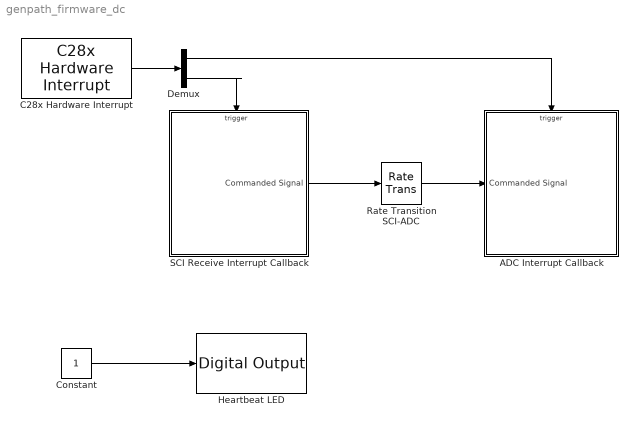
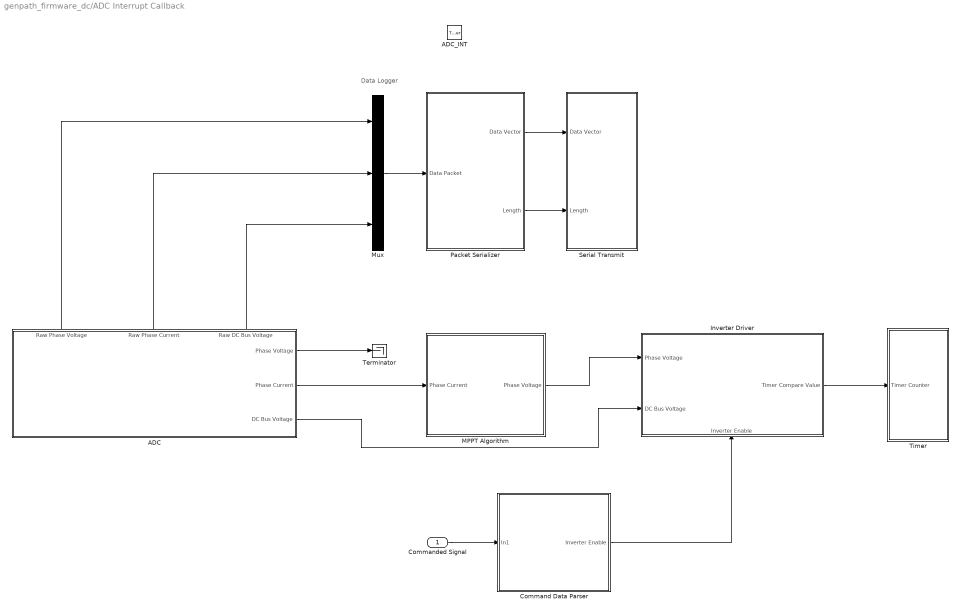
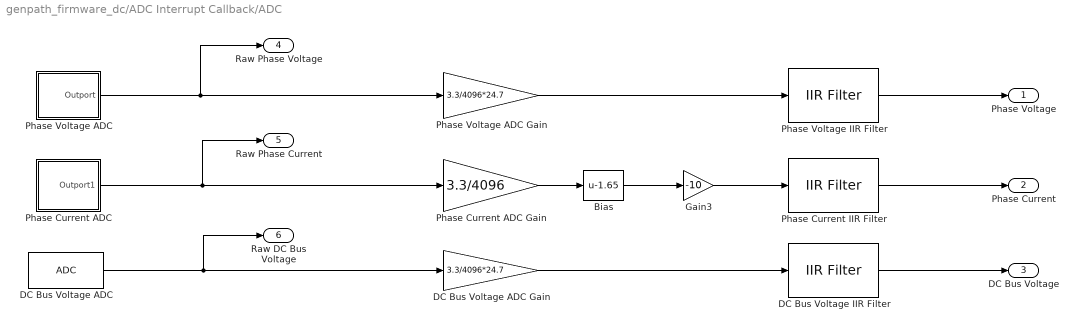
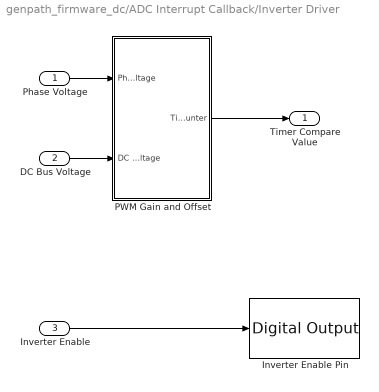
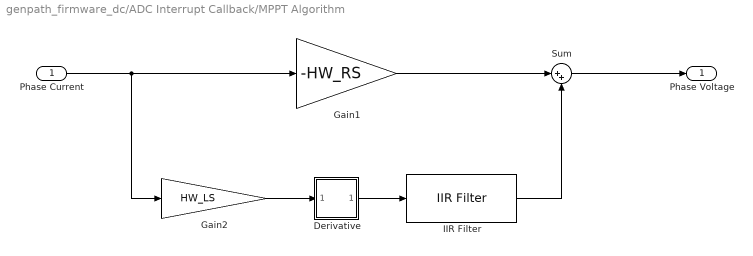
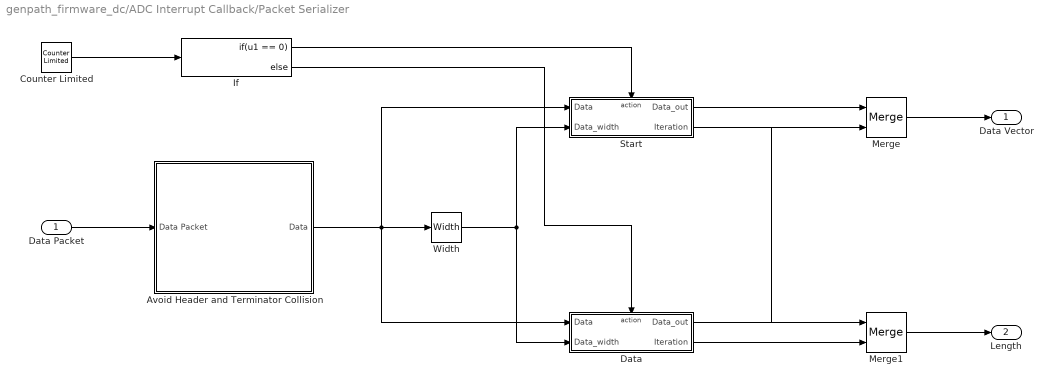
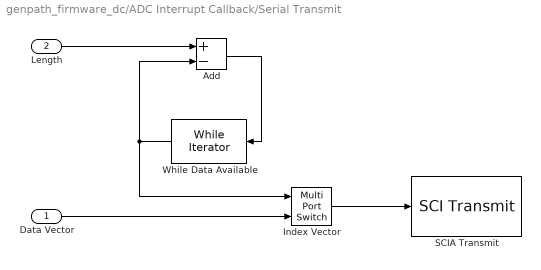
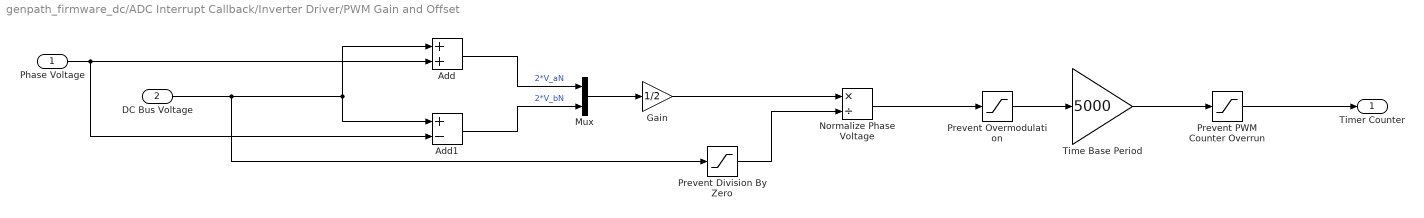
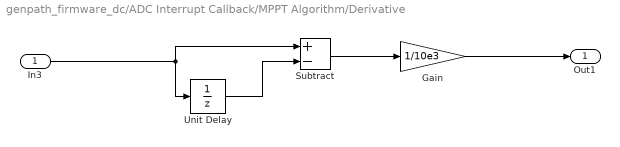
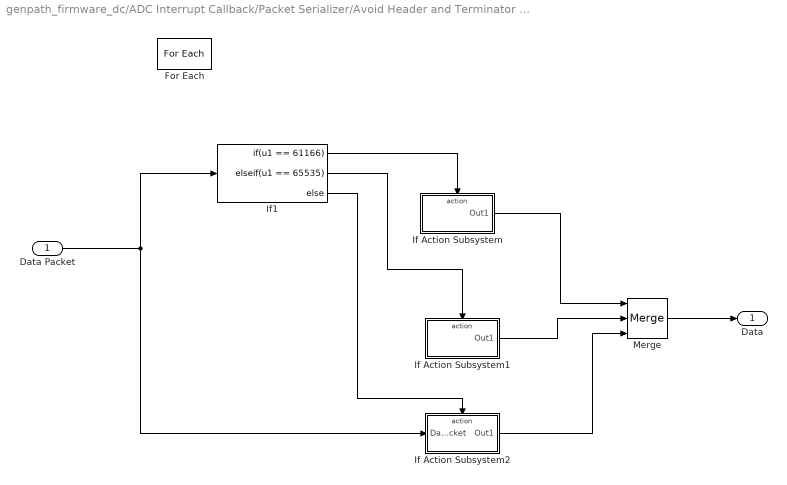
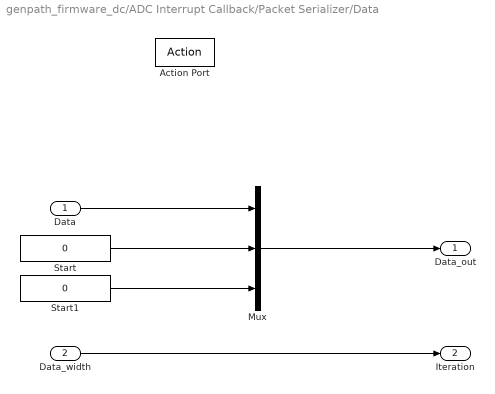
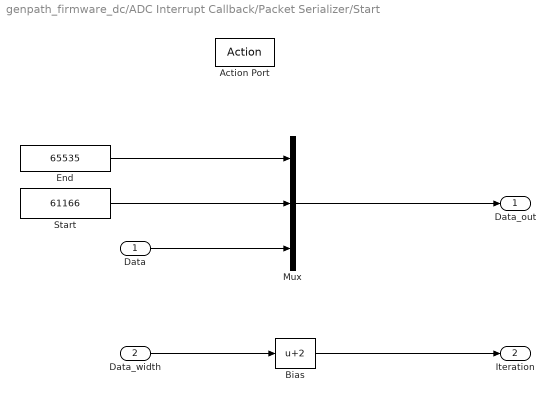
== system genpath_firmware_dc/SCI Receive Interrupt Callback ==
  SCI_RX_INT : TriggerPort  TriggerType=function-call  VariantControl=(inherit)
  SCIA Receive : c280xlib/SCI Receive  sciModule=A  dataHead='S'  headerCheckMaxCount=16  dataTail='E'  dataType=uint8  dataLenOptions=Length via dialog  dataDim=1  maxDataLength=1  initValue=0  errOption=Output the last received value  errValue=0  sampleTime=-1  blockingMode=on  timeOut=0.0175  outputStatus=off
  Commanded Signal : Outport
  wires:
  SCIA Receive/1 -> Commanded Signal/1

== system genpath_firmware_dc/ADC Interrupt Callback/Command Data Parser ==
  In1 : Inport
  Data Type Conversion : DataTypeConversion  SaturateOnIntegerOverflow=off  RndMeth=Floor
  Inverter Enable : Outport
  wires:
  Data Type Conversion/1 -> Inverter Enable/1
  In1/1 -> Data Type Conversion/1

== system genpath_firmware_dc/ADC Interrupt Callback/Timer ==
  Timer Counter : Inport
  Demux : Demux  Outputs=2
  SW_A : c2802xlib/ePWM  PwmType=C2000_Type4  useModule=ePWM1  ePWMxLINKTBPRD=Not Linked  periodUnits=Clock cycles  timerSource=Specify via dialog  timerPeriod_clk=5000  timerPeriod_sec=0.0001  tbshadow=Counter equals to zero  countingMode=Up-Down  phaseActiveEnable=Disable  phaseDirection=Count down after sync  phaseActive=0  synchronizationEnable=off  dcaevt1Sync=off  dcbevt1Sync=off  synchronizationOption=Disable  perSynchronizationOption=Counter equals to period (CTR=PRD)  clockPrescale=1  HSclockPrescale=1  enswap=off  ePWMxAStatus=on  ePWMxAactionLogic1=Set  ePWMxAactionLogic2=Clear  ePWMxAactionLogic3=Clear  ePWMxAactionLogic4=Set  ePWMxAactionLogic5=Do nothing  ePWMxAactionLogic6=Do nothing  ePWMxACSFenable=off  ePWMxACSFvalue=Forcing disable  ePWMxASFreload=Zero  ePWMxBStatus=off  ePWMxBactionLogic1=Set  ePWMxBactionLogic2=Clear  ePWMxBactionLogic3=Do nothing  ePWMxBactionLogic4=Do nothing  ePWMxBactionLogic5=Clear  ePWMxBactionLogic6=Set  ePWMxBCSFenable=off  ePWMxBCSFvalue=Forcing disable  ePWMxBSFreload=Zero  ePWNxBOutWay=off  ePWMxLINKCMPA=Not Linked  CMPAUnits=Clock cycles  CMPASource=Input port  CMPAValue_per=50  CMPAValue_clk=0  enCMPAshadow=Counter equals to zero (CTR=Zero)  ePWMxLINKCMPB=Not Linked  CMPBUnits=Clock cycles  CMPBSource=Specify via dialog  CMPBValue_per=50  CMPBValue_clk=32000  enCMPBshadow=Counter equals to zero (CTR=Zero)  ePWMxLINKCMPC=Not Linked  CMPCUnits=Clock cycles  CMPCSource=Specify via dialog  CMPCValue_per=50  CMPCValue_clk=32000  enCMPCshadow=Counter equals to zero (CTR=Zero)  ePWMxLINKCMPD=Not Linked  CMPDUnits=Clock cycles  CMPDSource=Specify via dialog  CMPDValue_per=50  CMPDValue_clk=32000  enCMPDshadow=Counter equals to zero (CTR=Zero)  enableDBePWMxA=on  enableDBePWMxB=on  enhalfcycle=off  DBpolarity=Active high complementary (AHC)  DBedgeDelay=Positive  DBSource_ePWMxA=ePWMxA  DBSource_ePWMxB=ePWMxA  DBPeriodUnits=Clock cycles  DBperiodSource=Specify via dialog  REDperiod=5  FEDperiod=5  REDperiod_sec=0  FEDperiod_sec=0  LoadModeDBRED=Immediate without using shadow  LoadModeDBFED=Immediate without using shadow  adcstartModuleA=on  adcrequestEventA=First event  adcstartEventA=Digital Compare Module A Event 1 start of conversion (DCAEVT1.soc)  adcstartEventA_type2=Counter equals to period (CTR=PRD)  adcstartModuleB=off  adcrequestEventB=First event  adcstartEventB=Counter equals to zero (CTR=Zero)  adcstartEventB_type2=Counter equals to zero (CTR=Zero)  intEn=off  intPrd=First event  intSel=Counter equals to zero (CTR=Zero)  intSel_type2=Counter equals to zero (CTR=Zero)  hrpe=off  enHRPWM=off  HRPWM_LoadMode=Counter equals to period (CTR=PRD)  HRPWM_CTLMode=Duty or Period control mode  HRPWM_EDGMode=Both edge  hrpeb=off  enHRPWMB=off  HRPWM_LoadModeB=Counter equals to zero (CTR=ZERO)  HRPWM_CTLModeB=Duty or Period control mode  HRPWM_EDGModeB=Both edge  enHRDBRED=off  enHRDBFED=off  enSFO=on  enautoconv=on  chopperEnable=off  chopperFrequency=1  chopperFirstwidth=1  chopperDuty=12.5%  tripZonesource=Specify via dialog  tzselOSHT1=off  tzselOSHT2=off  tzselOSHT3=off  tzselOSHDCAEV1=off  tzselOSHDCBEV1=off  tzselCBC1=off  tzselCBC2=off  tzselCBC3=off  tzselCBCDCAEV2=off  tzselCBCDCBEV2=off  tzselOSHT4=off  tzselOSHT5=off  tzselOSHT6=off  tzselCBC4=off  tzselCBC5=off  tzselCBC6=off  enTzOstIntr=off  enTzCbcIntr=off  enTzDCAEVT1Intr=off  enTzDCAEVT2Intr=off  enTzDCBEVT1Intr=off  enTzDCBEVT2Intr=off  ePWMxAforced=No action  ePWMxBforced=No action  DCAEVT1forced=No action  DCBEVT1forced=No action  DCAEVT2forced=No action  DCBEVT2forced=No action  dcah=Trip Zone 1 input (TZ1)  dcal=Trip Zone 2 input (TZ2)  dcbh=Trip Zone 1 input (TZ1)  dcbl=Trip Zone 2 input (TZ2)  dcah_type2=GPTRIP1SEL/(TZ1)  dcal_type2=GPTRIP1SEL/(TZ1)  dcbh_type2=GPTRIP1SEL/(TZ1)  dcbl_type2=GPTRIP1SEL/(TZ1)  gendcaevt1=Event disabled  gendcaevt2=Event disabled  gendcbevt1=Event disabled  gendcbevt2=Event disabled  dcaevt1src=DCAEVT1 with sync  dcaevt2src=DCAEVT2 with sync  dcbevt1src=DCBEVT1 with sync  dcbevt2src=DCBEVT2 with sync  pulsesel=Counter equals to zero (CTR=Zero)  blankinv=off  blankoffset=0  blankwidth=0  evsrcsel=Filtered version of DCAEVT1 (DCAEVT1FILT)  encape=off
  SW_B : c2802xlib/ePWM  PwmType=C2000_Type4  useModule=ePWM4  ePWMxLINKTBPRD=ePWM1  periodUnits=Clock cycles  timerSource=Specify via dialog  timerPeriod_clk=5000  timerPeriod_sec=0.0001  tbshadow=Counter equals to zero  countingMode=Up-Down  phaseActiveEnable=Disable  phaseDirection=Count down after sync  phaseActive=0  synchronizationEnable=off  dcaevt1Sync=off  dcbevt1Sync=off  synchronizationOption=Disable  perSynchronizationOption=Counter equals to period (CTR=PRD)  clockPrescale=1  HSclockPrescale=1  enswap=off  ePWMxAStatus=on  ePWMxAactionLogic1=Set  ePWMxAactionLogic2=Clear  ePWMxAactionLogic3=Clear  ePWMxAactionLogic4=Set  ePWMxAactionLogic5=Do nothing  ePWMxAactionLogic6=Do nothing  ePWMxACSFenable=off  ePWMxACSFvalue=Forcing disable  ePWMxASFreload=Zero  ePWMxBStatus=off  ePWMxBactionLogic1=Set  ePWMxBactionLogic2=Clear  ePWMxBactionLogic3=Do nothing  ePWMxBactionLogic4=Do nothing  ePWMxBactionLogic5=Clear  ePWMxBactionLogic6=Set  ePWMxBCSFenable=off  ePWMxBCSFvalue=Forcing disable  ePWMxBSFreload=Zero  ePWNxBOutWay=off  ePWMxLINKCMPA=Not Linked  CMPAUnits=Clock cycles  CMPASource=Input port  CMPAValue_per=50  CMPAValue_clk=0  enCMPAshadow=Counter equals to zero (CTR=Zero)  ePWMxLINKCMPB=Not Linked  CMPBUnits=Clock cycles  CMPBSource=Specify via dialog  CMPBValue_per=50  CMPBValue_clk=32000  enCMPBshadow=Counter equals to zero (CTR=Zero)  ePWMxLINKCMPC=Not Linked  CMPCUnits=Clock cycles  CMPCSource=Specify via dialog  CMPCValue_per=50  CMPCValue_clk=32000  enCMPCshadow=Counter equals to zero (CTR=Zero)  ePWMxLINKCMPD=Not Linked  CMPDUnits=Clock cycles  CMPDSource=Specify via dialog  CMPDValue_per=50  CMPDValue_clk=32000  enCMPDshadow=Counter equals to zero (CTR=Zero)  enableDBePWMxA=on  enableDBePWMxB=on  enhalfcycle=off  DBpolarity=Active high complementary (AHC)  DBedgeDelay=Positive  DBSource_ePWMxA=ePWMxA  DBSource_ePWMxB=ePWMxA  DBPeriodUnits=Clock cycles  DBperiodSource=Specify via dialog  REDperiod=5  FEDperiod=5  REDperiod_sec=0  FEDperiod_sec=0  LoadModeDBRED=Immediate without using shadow  LoadModeDBFED=Immediate without using shadow  adcstartModuleA=on  adcrequestEventA=First event  adcstartEventA=Digital Compare Module A Event 1 start of conversion (DCAEVT1.soc)  adcstartEventA_type2=Counter equals to period (CTR=PRD)  adcstartModuleB=off  adcrequestEventB=First event  adcstartEventB=Counter equals to zero (CTR=Zero)  adcstartEventB_type2=Counter equals to zero (CTR=Zero)  intEn=off  intPrd=First event  intSel=Counter equals to zero (CTR=Zero)  intSel_type2=Counter equals to zero (CTR=Zero)  hrpe=off  enHRPWM=off  HRPWM_LoadMode=Counter equals to period (CTR=PRD)  HRPWM_CTLMode=Duty or Period control mode  HRPWM_EDGMode=Both edge  hrpeb=off  enHRPWMB=off  HRPWM_LoadModeB=Counter equals to zero (CTR=ZERO)  HRPWM_CTLModeB=Duty or Period control mode  HRPWM_EDGModeB=Both edge  enHRDBRED=off  enHRDBFED=off  enSFO=on  enautoconv=on  chopperEnable=off  chopperFrequency=1  chopperFirstwidth=1  chopperDuty=12.5%  tripZonesource=Specify via dialog  tzselOSHT1=off  tzselOSHT2=off  tzselOSHT3=off  tzselOSHDCAEV1=off  tzselOSHDCBEV1=off  tzselCBC1=off  tzselCBC2=off  tzselCBC3=off  tzselCBCDCAEV2=off  tzselCBCDCBEV2=off  tzselOSHT4=off  tzselOSHT5=off  tzselOSHT6=off  tzselCBC4=off  tzselCBC5=off  tzselCBC6=off  enTzOstIntr=off  enTzCbcIntr=off  enTzDCAEVT1Intr=off  enTzDCAEVT2Intr=off  enTzDCBEVT1Intr=off  enTzDCBEVT2Intr=off  ePWMxAforced=No action  ePWMxBforced=No action  DCAEVT1forced=No action  DCBEVT1forced=No action  DCAEVT2forced=No action  DCBEVT2forced=No action  dcah=Trip Zone 1 input (TZ1)  dcal=Trip Zone 2 input (TZ2)  dcbh=Trip Zone 1 input (TZ1)  dcbl=Trip Zone 2 input (TZ2)  dcah_type2=GPTRIP1SEL/(TZ1)  dcal_type2=GPTRIP1SEL/(TZ1)  dcbh_type2=GPTRIP1SEL/(TZ1)  dcbl_type2=GPTRIP1SEL/(TZ1)  gendcaevt1=Event disabled  gendcaevt2=Event disabled  gendcbevt1=Event disabled  gendcbevt2=Event disabled  dcaevt1src=DCAEVT1 with sync  dcaevt2src=DCAEVT2 with sync  dcbevt1src=DCBEVT1 with sync  dcbevt2src=DCBEVT2 with sync  pulsesel=Counter equals to zero (CTR=Zero)  blankinv=off  blankoffset=0  blankwidth=0  evsrcsel=Filtered version of DCAEVT1 (DCAEVT1FILT)  encape=off
  wires:
  Timer Counter/1 -> Demux/1
  Demux/1 -> SW_A/1
  Demux/2 -> SW_B/1

== system genpath_firmware_dc/ADC Interrupt Callback/ADC/Phase Current ADC ==
  Bias : Bias  Bias=+5
  I_A : c2802xlib/ADC  blkParamProc=C2000_Type5  ADCModule=C  samplingMode=Single sample mode  ADCResolution=12-bit (Single-ended input)  useSOC1=SOC3  useSOC2=SOC0_SOC1  SOCAcquisitionWindow=8  SOCTriggerSource=ePWM1_ADCSOCA  SOCInterruptTrigger=No ADCINT  Ts=-1  dType=uint16  postInterrupt=off  interruptSel=ADCINT1  ADCINTContinuous=on  endma=off  chdma=1  conv1=ADCINA0  conv2=ADCINA0 and ADCINB0  conv1_Type4=ADCIN3  conv2_Type4=ADCIN0 and ADCIN1
  Outport1 : Outport
  wires:
  I_A/1 -> Bias/1
  Bias/1 -> Outport1/1

== system genpath_firmware_dc/ADC Interrupt Callback/ADC/Phase Voltage ADC ==
  Mux1 : Mux  Inputs=2
  V_A : c2802xlib/ADC  blkParamProc=C2000_Type5  ADCModule=B  samplingMode=Single sample mode  ADCResolution=12-bit (Single-ended input)  useSOC1=SOC0  useSOC2=SOC0_SOC1  SOCAcquisitionWindow=8  SOCTriggerSource=ePWM1_ADCSOCA  SOCInterruptTrigger=No ADCINT  Ts=-1  dType=uint16  postInterrupt=off  interruptSel=ADCINT1  ADCINTContinuous=on  endma=off  chdma=1  conv1=ADCINA0  conv2=ADCINA0 and ADCINB0  conv1_Type4=ADCIN6  conv2_Type4=ADCIN0 and ADCIN1
  V_B : c2802xlib/ADC  blkParamProc=C2000_Type5  ADCModule=C  samplingMode=Single sample mode  ADCResolution=12-bit (Single-ended input)  useSOC1=SOC1  useSOC2=SOC0_SOC1  SOCAcquisitionWindow=8  SOCTriggerSource=ePWM1_ADCSOCA  SOCInterruptTrigger=No ADCINT  Ts=-1  dType=uint16  postInterrupt=off  interruptSel=ADCINT1  ADCINTContinuous=on  endma=off  chdma=1  conv1=ADCINA0  conv2=ADCINA0 and ADCINB0  conv1_Type4=ADCIN14  conv2_Type4=ADCIN0 and ADCIN1
  Outport : Outport
  wires:
  Mux1/1 -> Outport/1
  V_B/1 -> Mux1/2
  V_A/1 -> Mux1/1

== system genpath_firmware_dc/ADC Interrupt Callback/Packet Serializer/Avoid Header and Terminator Collision/If Action Subsystem ==
  Action Port : ActionPort  ActionPortLabel=if(u1 == 61166)
  Constant : Constant  Value=258  OutDataTypeStr=Inherit: Inherit via back propagation
  Out1 : Outport
  wires:
  Constant/1 -> Out1/1

== system genpath_firmware_dc/ADC Interrupt Callback/Packet Serializer/Avoid Header and Terminator Collision/If Action Subsystem1 ==
  Action Port : ActionPort  ActionPortLabel=elseif( u1 == 65535)
  Constant : Constant  Value=515  OutDataTypeStr=Inherit: Inherit via back propagation
  Out1 : Outport
  wires:
  Constant/1 -> Out1/1

== system genpath_firmware_dc/ADC Interrupt Callback/Packet Serializer/Avoid Header and Terminator Collision/If Action Subsystem2 ==
  Data Packet : Inport
  Action Port : ActionPort  ActionPortLabel=else
  Out1 : Outport
  wires:
  Data Packet/1 -> Out1/1

/*
 * Academic License - for use in teaching, academic research, and meeting
 * course requirements at degree granting institutions only.  Not for
 * government, commercial, or other organizational use.
 *
 * File: genpath_firmware_dc.c
 *
 * Code generated for Simulink model 'genpath_firmware_dc'.
 *
 * Model version                  : 3.4
 * Simulink Coder version         : 9.7 (R2022a) 13-Nov-2021
 * C/C++ source code generated on : Thu Apr 21 10:46:13 2022
 *
 * Target selection: ert.tlc
 * Embedded hardware selection: Texas Instruments->C2000
 * Code generation objectives:
 *    1. Execution efficiency
 *    2. ROM efficiency
 *    3. RAM efficiency
 * Validation result: Not run
 */

#include "genpath_firmware_dc.h"
#include "rtwtypes.h"
#include "genpath_firmware_dc_private.h"
#include <math.h>
#include "rt_nonfinite.h"

/* Block signals (default storage) */
B_genpath_firmware_dc_T genpath_firmware_dc_B;

/* Block states (default storage) */
DW_genpath_firmware_dc_T genpath_firmware_dc_DW;

/* Real-time model */
static RT_MODEL_genpath_firmware_dc_T genpath_firmware_dc_M_;
RT_MODEL_genpath_firmware_dc_T *const genpath_firmware_dc_M =
  &genpath_firmware_dc_M_;
static void rate_monotonic_scheduler(void);

#ifndef __TMS320C28XX_CLA__

uint16_T MW_adcBInitFlag = 0;

#endif

#ifndef __TMS320C28XX_CLA__

uint16_T MW_adcCInitFlag = 0;

#endif

#ifndef __TMS320C28XX_CLA__

uint16_T MW_adcAInitFlag = 0;

#endif

/* Hardware Interrupt Block: '<Root>/C28x Hardware Interrupt' */
void isr_int1pie1_task_fcn(void)
{
  if (1 == runModel) {
    /* Call the system: <Root>/ADC Interrupt Callback */
    {
      /* RateTransition: '<Root>/Rate Transition SCI-ADC' */
      genpath_firmware_dc_B.RateTransitionSCIADC =
        genpath_firmware_dc_DW.RateTransitionSCIADC_Buffer0;

      /* S-Function (c28xisr_c2000): '<Root>/C28x Hardware Interrupt' */

      /* Output and update for function-call system: '<Root>/ADC Interrupt Callback' */
      {
        real32_T rtb_Gain2;
        real32_T rtb_PreventDivisionByZero;
        real32_T rtb_uV_bN;
        real32_T u0;
        int16_T s8_iter;
        uint16_T rtb_Merge[6];
        uint16_T rtb_ImpAsg_InsertedFor_Data_at_[4];
        uint16_T rtb_TmpSignalConversionAtAvoidH[4];
        uint16_T rtb_PreventPWMCounterOverrun[2];
        uint16_T qY;
        uint16_T rtb_Merge_p;

        /* S-Function (c2802xadc): '<S13>/V_A' */
        {
          /*  Internal Reference Voltage : Fixed scale 0 to 3.3 V range.  */
          /*  External Reference Voltage : Allowable ranges of VREFHI(ADCINA0) = 3.3 and VREFLO(tied to ground) = 0  */
          genpath_firmware_dc_B.V_A = (AdcbResultRegs.ADCRESULT0);
        }

        /* S-Function (c2802xadc): '<S13>/V_B' */
        {
          /*  Internal Reference Voltage : Fixed scale 0 to 3.3 V range.  */
          /*  External Reference Voltage : Allowable ranges of VREFHI(ADCINA0) = 3.3 and VREFLO(tied to ground) = 0  */
          genpath_firmware_dc_B.V_B = (AdccResultRegs.ADCRESULT1);
        }

        /* S-Function (c2802xadc): '<S11>/I_A' */
        {
          /*  Internal Reference Voltage : Fixed scale 0 to 3.3 V range.  */
          /*  External Reference Voltage : Allowable ranges of VREFHI(ADCINA0) = 3.3 and VREFLO(tied to ground) = 0  */
          genpath_firmware_dc_B.I_A = (AdccResultRegs.ADCRESULT3);
        }

        /* Bias: '<S11>/Bias' */
        qY = genpath_firmware_dc_B.I_A + /*MW:OvSatOk*/
          genpath_firmware_dc_P.Bias_Bias_p;
        if (qY < genpath_firmware_dc_B.I_A) {
          qY = MAX_uint16_T;
        }

        /* S-Function (c2802xadc): '<S3>/DC Bus Voltage ADC' */
        {
          /*  Internal Reference Voltage : Fixed scale 0 to 3.3 V range.  */
          /*  External Reference Voltage : Allowable ranges of VREFHI(ADCINA0) = 3.3 and VREFLO(tied to ground) = 0  */
          genpath_firmware_dc_B.DCBusVoltageADC = (AdcaResultRegs.ADCRESULT6);
        }

        /* SignalConversion generated from: '<S7>/Avoid Header and Terminator Collision' incorporates:
         *  Bias: '<S11>/Bias'
         */
        rtb_TmpSignalConversionAtAvoidH[0] = genpath_firmware_dc_B.V_A;
        rtb_TmpSignalConversionAtAvoidH[1] = genpath_firmware_dc_B.V_B;
        rtb_TmpSignalConversionAtAvoidH[2] = qY;
        rtb_TmpSignalConversionAtAvoidH[3] =
          genpath_firmware_dc_B.DCBusVoltageADC;

        /* Outputs for Iterator SubSystem: '<S7>/Avoid Header and Terminator Collision' incorporates:
         *  ForEach: '<S30>/For Each'
         */
        /* ForEachSliceSelector generated from: '<S30>/Data Packet' */
        rtb_Merge_p = rtb_TmpSignalConversionAtAvoidH[0];

        /* If: '<S30>/If1' */
        if (rtb_Merge_p == 61166U) {
          /* Outputs for IfAction SubSystem: '<S30>/If Action Subsystem' incorporates:
           *  ActionPort: '<S34>/Action Port'
           */
          genpath_f_IfActionSubsystem(&rtb_Merge_p,
            &genpath_firmware_dc_P.CoreSubsys.IfActionSubsystem);

          /* End of Outputs for SubSystem: '<S30>/If Action Subsystem' */
        } else if (rtb_Merge_p == MAX_uint16_T) {
          /* Outputs for IfAction SubSystem: '<S30>/If Action Subsystem1' incorporates:
           *  ActionPort: '<S35>/Action Port'
           */
          genpath_f_IfActionSubsystem(&rtb_Merge_p,
            &genpath_firmware_dc_P.CoreSubsys.IfActionSubsystem1);

          /* End of Outputs for SubSystem: '<S30>/If Action Subsystem1' */
        }

        /* ForEachSliceAssignment generated from: '<S30>/Data' */
        rtb_ImpAsg_InsertedFor_Data_at_[0] = rtb_Merge_p;

        /* ForEachSliceSelector generated from: '<S30>/Data Packet' */
        rtb_Merge_p = rtb_TmpSignalConversionAtAvoidH[1];

        /* If: '<S30>/If1' */
        if (rtb_Merge_p == 61166U) {
          /* Outputs for IfAction SubSystem: '<S30>/If Action Subsystem' incorporates:
           *  ActionPort: '<S34>/Action Port'
           */
          genpath_f_IfActionSubsystem(&rtb_Merge_p,
            &genpath_firmware_dc_P.CoreSubsys.IfActionSubsystem);

          /* End of Outputs for SubSystem: '<S30>/If Action Subsystem' */
        } else if (rtb_Merge_p == MAX_uint16_T) {
          /* Outputs for IfAction SubSystem: '<S30>/If Action Subsystem1' incorporates:
           *  ActionPort: '<S35>/Action Port'
           */
          genpath_f_IfActionSubsystem(&rtb_Merge_p,
            &genpath_firmware_dc_P.CoreSubsys.IfActionSubsystem1);

          /* End of Outputs for SubSystem: '<S30>/If Action Subsystem1' */
        }

        /* ForEachSliceAssignment generated from: '<S30>/Data' */
        rtb_ImpAsg_InsertedFor_Data_at_[1] = rtb_Merge_p;

        /* ForEachSliceSelector generated from: '<S30>/Data Packet' */
        rtb_Merge_p = rtb_TmpSignalConversionAtAvoidH[2];

        /* If: '<S30>/If1' */
        if (rtb_Merge_p == 61166U) {
          /* Outputs for IfAction SubSystem: '<S30>/If Action Subsystem' incorporates:
           *  ActionPort: '<S34>/Action Port'
           */
          genpath_f_IfActionSubsystem(&rtb_Merge_p,
            &genpath_firmware_dc_P.CoreSubsys.IfActionSubsystem);

          /* End of Outputs for SubSystem: '<S30>/If Action Subsystem' */
        } else if (rtb_Merge_p == MAX_uint16_T) {
          /* Outputs for IfAction SubSystem: '<S30>/If Action Subsystem1' incorporates:
           *  ActionPort: '<S35>/Action Port'
           */
          genpath_f_IfActionSubsystem(&rtb_Merge_p,
            &genpath_firmware_dc_P.CoreSubsys.IfActionSubsystem1);

          /* End of Outputs for SubSystem: '<S30>/If Action Subsystem1' */
        }

        /* ForEachSliceAssignment generated from: '<S30>/Data' */
        rtb_ImpAsg_InsertedFor_Data_at_[2] = rtb_Merge_p;

        /* ForEachSliceSelector generated from: '<S30>/Data Packet' */
        rtb_Merge_p = rtb_TmpSignalConversionAtAvoidH[3];

        /* If: '<S30>/If1' */
        if (rtb_Merge_p == 61166U) {
          /* Outputs for IfAction SubSystem: '<S30>/If Action Subsystem' incorporates:
           *  ActionPort: '<S34>/Action Port'
           */
          genpath_f_IfActionSubsystem(&rtb_Merge_p,
            &genpath_firmware_dc_P.CoreSubsys.IfActionSubsystem);

          /* End of Outputs for SubSystem: '<S30>/If Action Subsystem' */
        } else if (rtb_Merge_p == MAX_uint16_T) {
          /* Outputs for IfAction SubSystem: '<S30>/If Action Subsystem1' incorporates:
           *  ActionPort: '<S35>/Action Port'
           */
          genpath_f_IfActionSubsystem(&rtb_Merge_p,
            &genpath_firmware_dc_P.CoreSubsys.IfActionSubsystem1);

          /* End of Outputs for SubSystem: '<S30>/If Action Subsystem1' */
        }

        /* ForEachSliceAssignment generated from: '<S30>/Data' */
        rtb_ImpAsg_InsertedFor_Data_at_[3] = rtb_Merge_p;

        /* End of Outputs for SubSystem: '<S7>/Avoid Header and Terminator Collision' */

        /* If: '<S7>/If' incorporates:
         *  UnitDelay: '<S31>/Output'
         */
        if (genpath_firmware_dc_DW.Output_DSTATE == 0U) {
          /* Outputs for IfAction SubSystem: '<S7>/Start' incorporates:
           *  ActionPort: '<S33>/Action Port'
           */
          /* SignalConversion generated from: '<S33>/Data_out' incorporates:
           *  Constant: '<S33>/End'
           *  Constant: '<S33>/Start'
           *  SignalConversion generated from: '<S33>/Data'
           */
          rtb_Merge[0] = genpath_firmware_dc_P.End_Value;
          rtb_Merge[1] = genpath_firmware_dc_P.Start_Value;
          rtb_Merge[2] = rtb_ImpAsg_InsertedFor_Data_at_[0];
          rtb_Merge[3] = rtb_ImpAsg_InsertedFor_Data_at_[1];
          rtb_Merge[4] = rtb_ImpAsg_InsertedFor_Data_at_[2];
          rtb_Merge[5] = rtb_ImpAsg_InsertedFor_Data_at_[3];

          /* Bias: '<S33>/Bias' */
          rtb_Merge_p = genpath_firmware_dc_ConstB.Width +
            genpath_firmware_dc_P.Bias_Bias_c;

          /* End of Outputs for SubSystem: '<S7>/Start' */
        } else {
          /* Outputs for IfAction SubSystem: '<S7>/Data' incorporates:
           *  ActionPort: '<S32>/Action Port'
           */
          /* SignalConversion generated from: '<S32>/Data_out' incorporates:
           *  Constant: '<S32>/Start'
           *  Constant: '<S32>/Start1'
           *  SignalConversion generated from: '<S32>/Data'
           */
          rtb_Merge[0] = rtb_ImpAsg_InsertedFor_Data_at_[0];
          rtb_Merge[1] = rtb_ImpAsg_InsertedFor_Data_at_[1];
          rtb_Merge[2] = rtb_ImpAsg_InsertedFor_Data_at_[2];
          rtb_Merge[3] = rtb_ImpAsg_InsertedFor_Data_at_[3];
          rtb_Merge[4] = genpath_firmware_dc_P.Start_Value_i;
          rtb_Merge[5] = genpath_firmware_dc_P.Start1_Value;

          /* SignalConversion generated from: '<S32>/Data_width' */
          rtb_Merge_p = genpath_firmware_dc_ConstB.Width;

          /* End of Outputs for SubSystem: '<S7>/Data' */
        }

        /* End of If: '<S7>/If' */

        /* Outputs for Iterator SubSystem: '<S1>/Serial Transmit' incorporates:
         *  WhileIterator: '<S8>/While Data Available'
         */
        /* MultiPortSwitch: '<S8>/Index Vector' */
        s8_iter = 0;
        uint16_T rtb_Add;
        do {
          genpath_firmware_dc_B.DataTypeConversion = rtb_Merge[s8_iter];

          {
            if (checkSCITransmitInprogress != 1) {
              checkSCITransmitInprogress = 1;
              int errFlgHeader = NOERROR;
              int errFlgData = NOERROR;
              int errFlgTail = NOERROR;
              errFlgData = scia_xmit((char*)
                &genpath_firmware_dc_B.DataTypeConversion, 2, 2);
              checkSCITransmitInprogress = 0;
            }
          }

          rtb_Add = (rtb_Merge_p - s8_iter) - 1U;
          s8_iter++;
        } while (rtb_Add != 0U);

        /* End of Outputs for SubSystem: '<S1>/Serial Transmit' */

        /* Sum: '<S17>/Add1' incorporates:
         *  Constant: '<S17>/Filter_Constant'
         *  Constant: '<S17>/One'
         *  Gain: '<S3>/DC Bus Voltage ADC Gain'
         *  Product: '<S17>/Product'
         *  Product: '<S17>/Product1'
         *  UnitDelay: '<S17>/Unit Delay'
         */
        genpath_firmware_dc_DW.UnitDelay_DSTATE = (real32_T)
          genpath_firmware_dc_P.DCBusVoltageADCGain_Gain * 4.76837158E-7F *
          (real32_T)genpath_firmware_dc_B.DCBusVoltageADC *
          genpath_firmware_dc_P.Filter_Constant_Value +
          genpath_firmware_dc_P.One_Value *
          genpath_firmware_dc_DW.UnitDelay_DSTATE;

        /* Sum: '<S20>/Add1' incorporates:
         *  Bias: '<S11>/Bias'
         *  Bias: '<S3>/Bias'
         *  Constant: '<S20>/Filter_Constant'
         *  Constant: '<S20>/One'
         *  Gain: '<S3>/Gain3'
         *  Gain: '<S3>/Phase Current ADC Gain'
         *  Product: '<S20>/Product'
         *  Product: '<S20>/Product1'
         *  UnitDelay: '<S20>/Unit Delay'
         */
        genpath_firmware_dc_DW.UnitDelay_DSTATE_g = ((real32_T)
          genpath_firmware_dc_P.PhaseCurrentADCGain_Gain * 1.49011612E-8F *
          (real32_T)qY + genpath_firmware_dc_P.Bias_Bias) *
          genpath_firmware_dc_P.Gain3_Gain *
          genpath_firmware_dc_P.Filter_Constant_Value_d +
          genpath_firmware_dc_P.One_Value_e *
          genpath_firmware_dc_DW.UnitDelay_DSTATE_g;

        /* Gain: '<S6>/Gain2' */
        rtb_Gain2 = genpath_firmware_dc_P.HW_LS *
          genpath_firmware_dc_DW.UnitDelay_DSTATE_g;

        /* Sum: '<S29>/Add1' incorporates:
         *  Constant: '<S29>/Filter_Constant'
         *  Constant: '<S29>/One'
         *  Gain: '<S25>/Gain'
         *  Product: '<S29>/Product'
         *  Product: '<S29>/Product1'
         *  Sum: '<S25>/Subtract'
         *  UnitDelay: '<S25>/Unit Delay'
         *  UnitDelay: '<S29>/Unit Delay'
         */
        genpath_firmware_dc_DW.UnitDelay_DSTATE_m = (rtb_Gain2 -
          genpath_firmware_dc_DW.UnitDelay_DSTATE_gk) *
          genpath_firmware_dc_P.Gain_Gain *
          genpath_firmware_dc_P.Filter_Constant_Value_c +
          genpath_firmware_dc_P.One_Value_f *
          genpath_firmware_dc_DW.UnitDelay_DSTATE_m;

        /* Sum: '<S6>/Sum' incorporates:
         *  Gain: '<S6>/Gain1'
         */
        rtb_uV_bN = genpath_firmware_dc_P.Gain1_Gain *
          genpath_firmware_dc_DW.UnitDelay_DSTATE_g +
          genpath_firmware_dc_DW.UnitDelay_DSTATE_m;

        /* Saturate: '<S24>/Prevent Division By Zero' */
        if (genpath_firmware_dc_DW.UnitDelay_DSTATE >
            genpath_firmware_dc_P.PreventDivisionByZero_UpperSat) {
          rtb_PreventDivisionByZero =
            genpath_firmware_dc_P.PreventDivisionByZero_UpperSat;
        } else if (genpath_firmware_dc_DW.UnitDelay_DSTATE <
                   genpath_firmware_dc_P.PreventDivisionByZero_LowerSat) {
          rtb_PreventDivisionByZero =
            genpath_firmware_dc_P.PreventDivisionByZero_LowerSat;
        } else {
          rtb_PreventDivisionByZero = genpath_firmware_dc_DW.UnitDelay_DSTATE;
        }

        /* End of Saturate: '<S24>/Prevent Division By Zero' */

        /* Product: '<S24>/Normalize Phase Voltage' incorporates:
         *  Gain: '<S24>/Gain'
         *  Sum: '<S24>/Add'
         */
        u0 = (genpath_firmware_dc_DW.UnitDelay_DSTATE + rtb_uV_bN) *
          genpath_firmware_dc_P.Gain_Gain_o / rtb_PreventDivisionByZero;

        /* Saturate: '<S24>/Prevent Overmodulation' */
        if (u0 > genpath_firmware_dc_P.PreventOvermodulation_UpperSat) {
          u0 = genpath_firmware_dc_P.PreventOvermodulation_UpperSat;
        } else if (u0 < genpath_firmware_dc_P.PreventOvermodulation_LowerSat) {
          u0 = genpath_firmware_dc_P.PreventOvermodulation_LowerSat;
        }

        /* Gain: '<S24>/Time Base Period' */
        u0 *= genpath_firmware_dc_P.TimeBasePeriod_Gain;

        /* Saturate: '<S24>/Prevent PWM Counter Overrun' */
        if (u0 > genpath_firmware_dc_P.PreventPWMCounterOverrun_UpperS) {
          u0 = genpath_firmware_dc_P.PreventPWMCounterOverrun_UpperS;
        } else if (u0 < genpath_firmware_dc_P.PreventPWMCounterOverrun_LowerS) {
          u0 = genpath_firmware_dc_P.PreventPWMCounterOverrun_LowerS;
        }

        u0 = floorf(u0);
        if (rtIsNaNF(u0)) {
          u0 = 0.0F;
        } else {
          u0 = fmodf(u0, 65536.0F);
        }

        rtb_PreventPWMCounterOverrun[0] = u0 < 0.0F ? (uint16_T)-(int16_T)
          (uint16_T)-u0 : (uint16_T)u0;

        /* Product: '<S24>/Normalize Phase Voltage' incorporates:
         *  Gain: '<S24>/Gain'
         *  Sum: '<S24>/Add1'
         */
        u0 = (genpath_firmware_dc_DW.UnitDelay_DSTATE - rtb_uV_bN) *
          genpath_firmware_dc_P.Gain_Gain_o / rtb_PreventDivisionByZero;

        /* Saturate: '<S24>/Prevent Overmodulation' */
        if (u0 > genpath_firmware_dc_P.PreventOvermodulation_UpperSat) {
          u0 = genpath_firmware_dc_P.PreventOvermodulation_UpperSat;
        } else if (u0 < genpath_firmware_dc_P.PreventOvermodulation_LowerSat) {
          u0 = genpath_firmware_dc_P.PreventOvermodulation_LowerSat;
        }

        /* Gain: '<S24>/Time Base Period' */
        u0 *= genpath_firmware_dc_P.TimeBasePeriod_Gain;

        /* Saturate: '<S24>/Prevent PWM Counter Overrun' */
        if (u0 > genpath_firmware_dc_P.PreventPWMCounterOverrun_UpperS) {
          u0 = genpath_firmware_dc_P.PreventPWMCounterOverrun_UpperS;
        } else if (u0 < genpath_firmware_dc_P.PreventPWMCounterOverrun_LowerS) {
          u0 = genpath_firmware_dc_P.PreventPWMCounterOverrun_LowerS;
        }

        u0 = floorf(u0);
        if (rtIsNaNF(u0)) {
          u0 = 0.0F;
        } else {
          u0 = fmodf(u0, 65536.0F);
        }

        rtb_PreventPWMCounterOverrun[1] = u0 < 0.0F ? (uint16_T)-(int16_T)
          (uint16_T)-u0 : (uint16_T)u0;

        /* S-Function (c2802xpwm): '<S9>/SW_A' */

        /*-- Update CMPA value for ePWM1 --*/
        {
          EPwm1Regs.CMPA.bit.CMPA = (uint16_T)(rtb_PreventPWMCounterOverrun[0]);
        }

        /* S-Function (c2802xpwm): '<S9>/SW_B' */

        /*-- Update CMPA value for ePWM4 --*/
        {
          EPwm4Regs.CMPA.bit.CMPA = (uint16_T)(rtb_PreventPWMCounterOverrun[1]);
        }

        /* DataTypeConversion: '<S4>/Data Type Conversion' incorporates:
         *  RateTransition: '<Root>/Rate Transition SCI-ADC'
         */
        genpath_firmware_dc_B.DataTypeConversion =
          genpath_firmware_dc_B.RateTransitionSCIADC;

        /* S-Function (c280xgpio_do): '<S5>/Inverter Enable Pin' */
        {
          if (genpath_firmware_dc_B.DataTypeConversion)
            GpioDataRegs.GPBSET.bit.GPIO33 = 1;
          else
            GpioDataRegs.GPBCLEAR.bit.GPIO33 = 1;
        }

        /* Sum: '<S37>/FixPt Sum1' incorporates:
         *  Constant: '<S37>/FixPt Constant'
         *  UnitDelay: '<S31>/Output'
         */
        genpath_firmware_dc_DW.Output_DSTATE +=
          genpath_firmware_dc_P.FixPtConstant_Value;

        /* Switch: '<S38>/FixPt Switch' */
        if (genpath_firmware_dc_DW.Output_DSTATE >
            genpath_firmware_dc_P.CounterLimited_uplimit) {
          /* Sum: '<S37>/FixPt Sum1' incorporates:
           *  Constant: '<S38>/Constant'
           *  UnitDelay: '<S31>/Output'
           */
          genpath_firmware_dc_DW.Output_DSTATE =
            genpath_firmware_dc_P.Constant_Value_m;
        }

        /* End of Switch: '<S38>/FixPt Switch' */

        /* Update for UnitDelay: '<S25>/Unit Delay' */
        genpath_firmware_dc_DW.UnitDelay_DSTATE_gk = rtb_Gain2;
      }

      /* End of Outputs for S-Function (c28xisr_c2000): '<Root>/C28x Hardware Interrupt' */
    }
  }
}

/* Hardware Interrupt Block: '<Root>/C28x Hardware Interrupt' */
void isr_int9pie1_task_fcn(void)
{
  if (1 == runModel) {
    /* Call the system: <Root>/SCI Receive Interrupt Callback */
    {
      /* S-Function (c28xisr_c2000): '<Root>/C28x Hardware Interrupt' */

      /* Output and update for function-call system: '<Root>/SCI Receive Interrupt Callback' */

      /* S-Function (c28xsci_rx): '<S2>/SCIA Receive' */
      {
        int i;
        int errFlg = NOERROR;
        unsigned int recbuff[1];
        for (i = 0; i < 1; i++)
          recbuff[i] = 0;

        /* Getting Data Head */
        {
          unsigned int recHead;
          int cnt = 0;
          int i = 0;
          char *expHead = "S";
          while (i < 1) {
            scia_rcv(&recHead, 1, 1);
            if (recHead == expHead[i]) {
              i++;
            } else {
              i = 0;
            }

            if (cnt++ > 16U) {
              errFlg = TIMEOUT;
              goto RXERRA;
            }
          }
        }

        /* End of Getting Data Head */

        /* Receiving data: For uint32 and uint16, rcvBuff will contain uint16 data */
        errFlg = scia_rcv(recbuff, 1, 1);
        if (errFlg != NOERROR)
          goto RXERRA;

        /* Getting Data Tail */
        {
          int i;
          char *expTail = "E";
          unsigned int recTail[1];
          scia_rcv(recTail, 1, 1);
          for (i = 0; i< 1; i++) {
            if (expTail[i] != recTail[i]) {
              errFlg = DATAERR;
              goto RXERRA;
            }
          }
        }

        /* End of Getting Data Tail */
        memcpy( &genpath_firmware_dc_B.SCIAReceive, recbuff, 1);
       RXERRA:
        asm(" NOP");
      }

      /* End of Outputs for S-Function (c28xisr_c2000): '<Root>/C28x Hardware Interrupt' */

      /* RateTransition: '<Root>/Rate Transition SCI-ADC' incorporates:
       *  S-Function (c28xsci_rx): '<S2>/SCIA Receive'
       */
      genpath_firmware_dc_DW.RateTransitionSCIADC_Buffer0 =
        genpath_firmware_dc_B.SCIAReceive;
    }
  }
}

/*
 * Set which subrates need to run this base step (base rate always runs).
 * This function must be called prior to calling the model step function
 * in order to remember which rates need to run this base step.  The
 * buffering of events allows for overlapping preemption.
 */
void genpath_firmware_dc_SetEventsForThisBaseStep(boolean_T *eventFlags)
{
  /* Task runs when its counter is zero, computed via rtmStepTask macro */
  eventFlags[1] = ((boolean_T)rtmStepTask(genpath_firmware_dc_M, 1));
}

/*
 *         This function updates active task flag for each subrate
 *         and rate transition flags for tasks that exchange data.
 *         The function assumes rate-monotonic multitasking scheduler.
 *         The function must be called at model base rate so that
 *         the generated code self-manages all its subrates and rate
 *         transition flags.
 */
static void rate_monotonic_scheduler(void)
{
  /* Compute which subrates run during the next base time step.  Subrates
   * are an integer multiple of the base rate counter.  Therefore, the subtask
   * counter is reset when it reaches its limit (zero means run).
   */
  (genpath_firmware_dc_M->Timing.TaskCounters.TID[1])++;
  if ((genpath_firmware_dc_M->Timing.TaskCounters.TID[1]) > 19999) {/* Sample time: [1.0s, 0.0s] */
    genpath_firmware_dc_M->Timing.TaskCounters.TID[1] = 0;
  }
}

/*
 * Output and update for action system:
 *    '<S30>/If Action Subsystem'
 *    '<S30>/If Action Subsystem1'
 */
void genpath_f_IfActionSubsystem(uint16_T *rty_Out1,
  P_IfActionSubsystem_genpath_f_T *localP)
{
  /* SignalConversion generated from: '<S34>/Out1' incorporates:
   *  Constant: '<S34>/Constant'
   */
  *rty_Out1 = localP->Constant_Value;
}

/* Model step function for TID0 */
void genpath_firmware_dc_step0(void)   /* Sample time: [5.0E-5s, 0.0s] */
{
  {                                    /* Sample time: [5.0E-5s, 0.0s] */
    rate_monotonic_scheduler();
  }
}

/* Model step function for TID1 */
void genpath_firmware_dc_step1(void)   /* Sample time: [1.0s, 0.0s] */
{
  /* S-Function (c280xgpio_do): '<Root>/Heartbeat LED' incorporates:
   *  Constant: '<Root>/Constant'
   */
  {
    GpioDataRegs.GPATOGGLE.bit.GPIO23 = (genpath_firmware_dc_P.Constant_Value !=
      0);
  }
}
